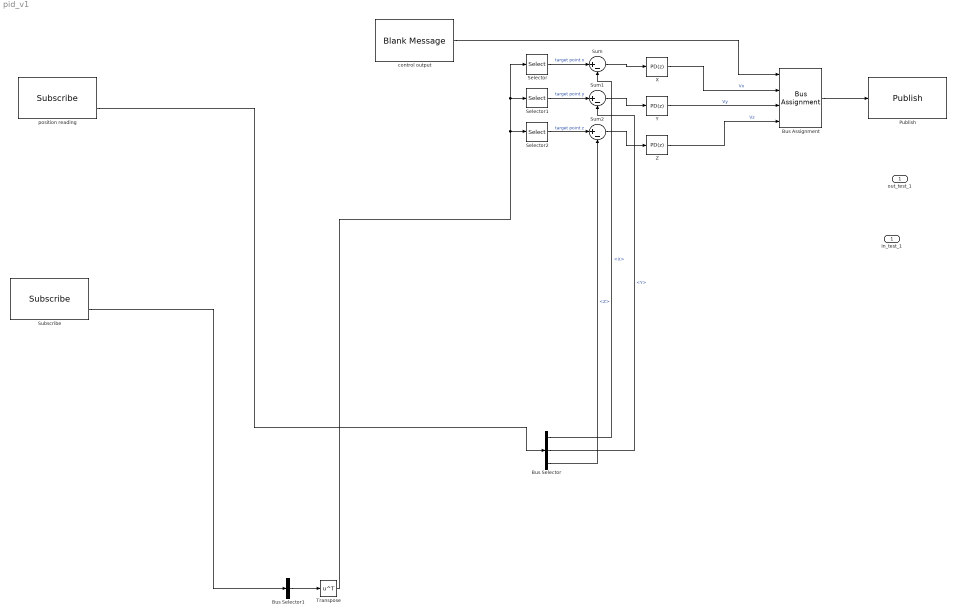
/*
 * pid_v1.cpp
 *
 * Academic License - for use in teaching, academic research, and meeting
 * course requirements at degree granting institutions only.  Not for
 * government, commercial, or other organizational use.
 *
 * Code generation for model "pid_v1".
 *
 * Model version              : 1.34
 * Simulink Coder version : 24.2 (R2024b) 21-Jun-2024
 * C++ source code generated on : Fri Sep 12 18:04:43 2025
 *
 * Target selection: ert.tlc
 * Note: GRT includes extra infrastructure and instrumentation for prototyping
 * Embedded hardware selection: Generic->Unspecified (assume 32-bit Generic)
 * Code generation objectives: Unspecified
 * Validation result: Not run
 */

#include "pid_v1.h"
#include "rtwtypes.h"
#include <cstring>

/* Block signals (default storage) */
B_pid_v1_T pid_v1_B;

/* Block states (default storage) */
DW_pid_v1_T pid_v1_DW;

/* External inputs (root inport signals with default storage) */
ExtU_pid_v1_T pid_v1_U;

/* External outputs (root outports fed by signals with default storage) */
ExtY_pid_v1_T pid_v1_Y;

/* Real-time model */
RT_MODEL_pid_v1_T pid_v1_M_{ };

RT_MODEL_pid_v1_T *const pid_v1_M{ &pid_v1_M_ };

/* Model step function */
void pid_v1_step(void)
{
  real_T rtb_Filter;
  real_T rtb_FilterCoefficient;
  real_T rtb_FilterCoefficient_e;
  real_T rtb_FilterCoefficient_n;
  real_T rtb_Filter_m;
  real_T rtb_Filter_n;
  boolean_T b_varargout_1;

  /* BusAssignment: '<Root>/Bus Assignment' incorporates:
   *  Constant: '<S6>/Constant'
   */
  pid_v1_B.BusAssignment = pid_v1_P.Constant_Value_o;

  /* Outputs for Atomic SubSystem: '<Root>/Subscribe' */
  /* MATLABSystem: '<S2>/SourceBlock' */
  b_varargout_1 = Sub_pid_v1_244.getLatestMessage
    (&pid_v1_B.rtb_SourceBlock_o2_i_c);

  /* Outputs for Enabled SubSystem: '<S2>/Enabled Subsystem' incorporates:
   *  EnablePort: '<S8>/Enable'
   */
  /* Start for MATLABSystem: '<S2>/SourceBlock' */
  if (b_varargout_1) {
    /* SignalConversion generated from: '<S8>/In1' */
    pid_v1_B.In1_h = pid_v1_B.rtb_SourceBlock_o2_i_c;
  }

  /* End of Start for MATLABSystem: '<S2>/SourceBlock' */
  /* End of Outputs for SubSystem: '<S2>/Enabled Subsystem' */
  /* End of Outputs for SubSystem: '<Root>/Subscribe' */

  /* Outputs for Atomic SubSystem: '<Root>/position reading' */
  /* MATLABSystem: '<S7>/SourceBlock' */
  b_varargout_1 = Sub_pid_v1_1.getLatestMessage(&pid_v1_B.rtb_SourceBlock_o2_m);

  /* Outputs for Enabled SubSystem: '<S7>/Enabled Subsystem' incorporates:
   *  EnablePort: '<S165>/Enable'
   */
  /* Start for MATLABSystem: '<S7>/SourceBlock' */
  if (b_varargout_1) {
    /* SignalConversion generated from: '<S165>/In1' */
    pid_v1_B.In1 = pid_v1_B.rtb_SourceBlock_o2_m;
  }

  /* End of Start for MATLABSystem: '<S7>/SourceBlock' */
  /* End of Outputs for SubSystem: '<S7>/Enabled Subsystem' */
  /* End of Outputs for SubSystem: '<Root>/position reading' */

  /* Sum: '<Root>/Sum' incorporates:
   *  SignalConversion generated from: '<Root>/Transpose'
   */
  rtb_Filter = pid_v1_B.In1_h.X - pid_v1_B.In1.Pose.Pose.Position.X;

  /* Gain: '<S46>/Filter Coefficient' incorporates:
   *  DiscreteIntegrator: '<S38>/Filter'
   *  Gain: '<S36>/Derivative Gain'
   *  Sum: '<S38>/SumD'
   */
  rtb_FilterCoefficient = (pid_v1_P.X_D * rtb_Filter - pid_v1_DW.Filter_DSTATE) *
    pid_v1_P.X_N;

  /* Sum: '<Root>/Sum1' incorporates:
   *  SignalConversion generated from: '<Root>/Transpose'
   */
  rtb_Filter_n = pid_v1_B.In1_h.Y - pid_v1_B.In1.Pose.Pose.Position.Y;

  /* Gain: '<S98>/Filter Coefficient' incorporates:
   *  DiscreteIntegrator: '<S90>/Filter'
   *  Gain: '<S88>/Derivative Gain'
   *  Sum: '<S90>/SumD'
   */
  rtb_FilterCoefficient_n = (pid_v1_P.Y_D * rtb_Filter_n -
    pid_v1_DW.Filter_DSTATE_a) * pid_v1_P.Y_N;

  /* Sum: '<Root>/Sum2' incorporates:
   *  SignalConversion generated from: '<Root>/Transpose'
   */
  rtb_Filter_m = pid_v1_B.In1_h.Z - pid_v1_B.In1.Pose.Pose.Position.Z;

  /* Gain: '<S150>/Filter Coefficient' incorporates:
   *  DiscreteIntegrator: '<S142>/Filter'
   *  Gain: '<S140>/Derivative Gain'
   *  Sum: '<S142>/SumD'
   */
  rtb_FilterCoefficient_e = (pid_v1_P.Z_D * rtb_Filter_m -
    pid_v1_DW.Filter_DSTATE_g) * pid_v1_P.Z_N;

  /* BusAssignment: '<Root>/Bus Assignment' incorporates:
   *  Gain: '<S100>/Proportional Gain'
   *  Gain: '<S152>/Proportional Gain'
   *  Gain: '<S48>/Proportional Gain'
   *  Sum: '<S104>/Sum'
   *  Sum: '<S156>/Sum'
   *  Sum: '<S52>/Sum'
   */
  pid_v1_B.BusAssignment.Linear.X = pid_v1_P.X_P * rtb_Filter +
    rtb_FilterCoefficient;
  pid_v1_B.BusAssignment.Linear.Y = pid_v1_P.Y_P * rtb_Filter_n +
    rtb_FilterCoefficient_n;
  pid_v1_B.BusAssignment.Linear.Z = pid_v1_P.Z_P * rtb_Filter_m +
    rtb_FilterCoefficient_e;

  /* Outputs for Atomic SubSystem: '<Root>/Publish' */
  /* MATLABSystem: '<S1>/SinkBlock' */
  Pub_pid_v1_11.publish(&pid_v1_B.BusAssignment);

  /* End of Outputs for SubSystem: '<Root>/Publish' */

  /* Update for DiscreteIntegrator: '<S38>/Filter' */
  pid_v1_DW.Filter_DSTATE += pid_v1_P.Filter_gainval * rtb_FilterCoefficient;

  /* Update for DiscreteIntegrator: '<S90>/Filter' */
  pid_v1_DW.Filter_DSTATE_a += pid_v1_P.Filter_gainval_l *
    rtb_FilterCoefficient_n;

  /* Update for DiscreteIntegrator: '<S142>/Filter' */
  pid_v1_DW.Filter_DSTATE_g += pid_v1_P.Filter_gainval_e *
    rtb_FilterCoefficient_e;
}
